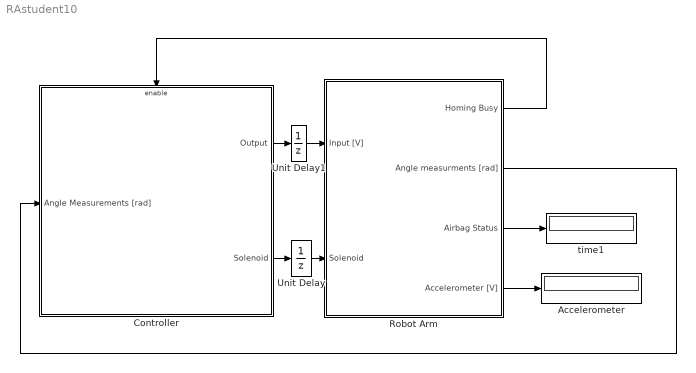
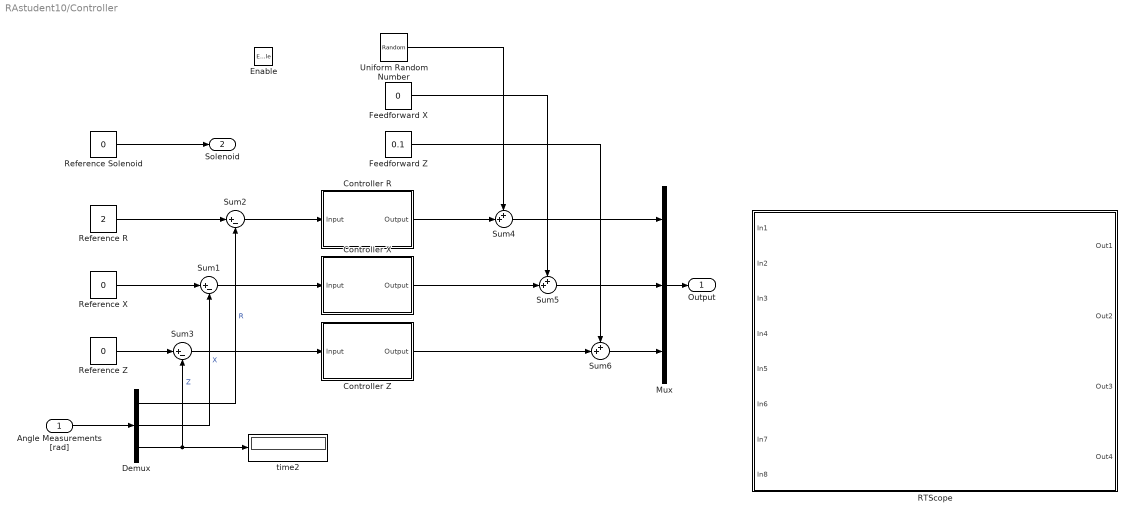
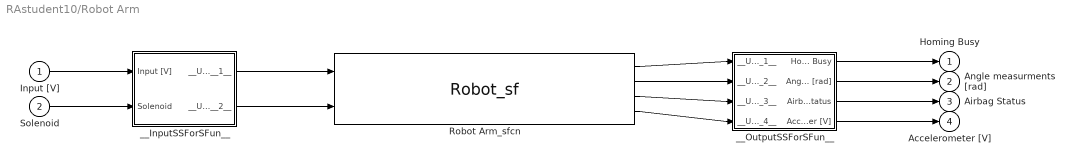
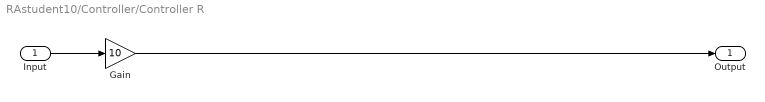
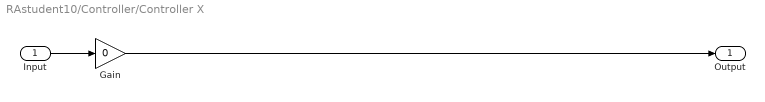
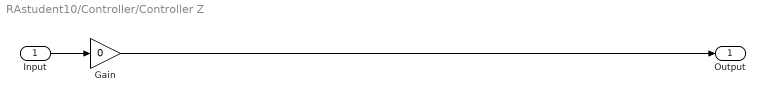
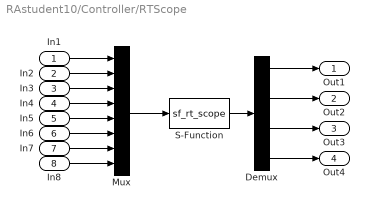
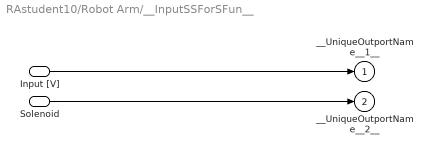
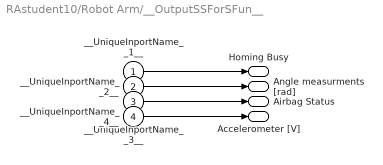
/*
 * RAstudent10.c
 *
 * Academic License - for use in teaching, academic research, and meeting
 * course requirements at degree granting institutions only.  Not for
 * government, commercial, or other organizational use.
 *
 * Code generation for model "RAstudent10".
 *
 * Model version              : 1.899
 * Simulink Coder version : 8.9 (R2015b) 13-Aug-2015
 * C source code generated on : Tue Apr  5 17:14:20 2016
 *
 * Target selection: ectarget.tlc
 * Note: GRT includes extra infrastructure and instrumentation for prototyping
 * Embedded hardware selection: 32-bit Generic
 * Code generation objectives: Unspecified
 * Validation result: Not run
 */

#include "RAstudent10.h"
#include "RAstudent10_private.h"
#include "RAstudent10_dt.h"
#undef S_FUNCTION_NAME
#if !defined(RTW_GENERATED_SFCN_TUNABLE_PRMS_Robot_sf)
#define RTW_GENERATED_SFCN_TUNABLE_PRMS_Robot_sf
#endif

#include "Robot_sf.h"

const real_T RAstudent10_RGND = 0.0;   /* real_T ground */

/* Block signals (auto storage) */
B_RAstudent10_T RAstudent10_B;

/* Block states (auto storage) */
DW_RAstudent10_T RAstudent10_DW;

/* Real-time model */
RT_MODEL_RAstudent10_T RAstudent10_M_;
RT_MODEL_RAstudent10_T *const RAstudent10_M = &RAstudent10_M_;
real_T rt_urand_Upu32_Yd_f_pw_snf(uint32_T *u)
{
  uint32_T lo;
  uint32_T hi;

  /* Uniform random number generator (random number between 0 and 1)

     #define IA      16807                      magic multiplier = 7^5
     #define IM      2147483647                 modulus = 2^31-1
     #define IQ      127773                     IM div IA
     #define IR      2836                       IM modulo IA
     #define S       4.656612875245797e-10      reciprocal of 2^31-1
     test = IA * (seed % IQ) - IR * (seed/IQ)
     seed = test < 0 ? (test + IM) : test
     return (seed*S)
   */
  lo = *u % 127773U * 16807U;
  hi = *u / 127773U * 2836U;
  if (lo < hi) {
    *u = 2147483647U - (hi - lo);
  } else {
    *u = lo - hi;
  }

  return (real_T)*u * 4.6566128752457969E-10;
}

/* Model output function */
void RAstudent10_output(void)
{
  /* Reset subsysRan breadcrumbs */
  srClearBC(RAstudent10_DW.Controller_SubsysRanBC);

  /* UnitDelay: '<Root>/Unit Delay1' */
  RAstudent10_B.UnitDelay1[0] = RAstudent10_DW.UnitDelay1_DSTATE[0];
  RAstudent10_B.UnitDelay1[1] = RAstudent10_DW.UnitDelay1_DSTATE[1];
  RAstudent10_B.UnitDelay1[2] = RAstudent10_DW.UnitDelay1_DSTATE[2];

  /* UnitDelay: '<Root>/Unit Delay' */
  RAstudent10_B.UnitDelay = RAstudent10_DW.UnitDelay_DSTATE;

  /* RTW Generated Level2 S-Function Block: '<S2>/Robot Arm_sfcn' (Robot_sf) */
  {
    SimStruct *rts = RAstudent10_M->childSfunctions[1];
    sfcnOutputs(rts, 0);
  }

  /* Outputs for Enabled SubSystem: '<Root>/Controller' incorporates:
   *  EnablePort: '<S1>/Enable'
   */
  if (RAstudent10_B.RobotArm_sfcn_o1 > 0.0) {
    if (!RAstudent10_DW.Controller_MODE) {
      RAstudent10_DW.Controller_MODE = true;
    }
  } else {
    if (RAstudent10_DW.Controller_MODE) {
      RAstudent10_DW.Controller_MODE = false;
    }
  }

  if (RAstudent10_DW.Controller_MODE) {
    /* UniformRandomNumber: '<S1>/Uniform Random Number' */
    RAstudent10_B.UniformRandomNumber =
      RAstudent10_DW.UniformRandomNumber_NextOutput;

    /* Sum: '<S1>/Sum4' incorporates:
     *  Constant: '<S1>/Reference R'
     *  Gain: '<S3>/Gain'
     *  Sum: '<S1>/Sum2'
     */
    RAstudent10_B.Sum4 = (RAstudent10_P.ReferenceR_Value -
                          RAstudent10_B.RobotArm_sfcn_o2[0]) *
      RAstudent10_P.Gain_Gain + RAstudent10_B.UniformRandomNumber;

    /* Sum: '<S1>/Sum5' incorporates:
     *  Constant: '<S1>/Feedforward X'
     *  Constant: '<S1>/Reference X'
     *  Gain: '<S4>/Gain'
     *  Sum: '<S1>/Sum1'
     */
    RAstudent10_B.Sum5 = (RAstudent10_P.ReferenceX_Value -
                          RAstudent10_B.RobotArm_sfcn_o2[1]) *
      RAstudent10_P.Gain_Gain_e + RAstudent10_P.FeedforwardX_Value;

    /* Sum: '<S1>/Sum6' incorporates:
     *  Constant: '<S1>/Feedforward Z'
     *  Constant: '<S1>/Reference Z'
     *  Gain: '<S5>/Gain'
     *  Sum: '<S1>/Sum3'
     */
    RAstudent10_B.Sum6 = (RAstudent10_P.ReferenceZ_Value -
                          RAstudent10_B.RobotArm_sfcn_o2[2]) *
      RAstudent10_P.Gain_Gain_l + RAstudent10_P.FeedforwardZ_Value;

    /* Constant: '<S1>/Reference Solenoid' */
    RAstudent10_B.ReferenceSolenoid = RAstudent10_P.ReferenceSolenoid_Value;

    /* Level2 S-Function Block: '<S6>/S-Function' (sf_rt_scope) */
    {
      SimStruct *rts = RAstudent10_M->childSfunctions[0];
      sfcnOutputs(rts, 0);
    }

    srUpdateBC(RAstudent10_DW.Controller_SubsysRanBC);
  }

  /* End of Outputs for SubSystem: '<Root>/Controller' */
}

/* Model update function */
void RAstudent10_update(void)
{
  /* Update for UnitDelay: '<Root>/Unit Delay1' */
  RAstudent10_DW.UnitDelay1_DSTATE[0] = RAstudent10_B.Sum4;
  RAstudent10_DW.UnitDelay1_DSTATE[1] = RAstudent10_B.Sum5;
  RAstudent10_DW.UnitDelay1_DSTATE[2] = RAstudent10_B.Sum6;

  /* Update for UnitDelay: '<Root>/Unit Delay' */
  RAstudent10_DW.UnitDelay_DSTATE = RAstudent10_B.ReferenceSolenoid;

  /* RTW Generated Level2 S-Function Block: '<S2>/Robot Arm_sfcn' (Robot_sf) */
  {
    SimStruct *rts = RAstudent10_M->childSfunctions[1];
    sfcnUpdate(rts, 0);
    if (ssGetErrorStatus(rts) != (NULL))
      return;
  }

  /* Update for Enabled SubSystem: '<Root>/Controller' incorporates:
   *  Update for EnablePort: '<S1>/Enable'
   */
  if (RAstudent10_DW.Controller_MODE) {
    /* Update for UniformRandomNumber: '<S1>/Uniform Random Number' */
    RAstudent10_DW.UniformRandomNumber_NextOutput =
      (RAstudent10_P.UniformRandomNumber_Maximum -
       RAstudent10_P.UniformRandomNumber_Minimum) * rt_urand_Upu32_Yd_f_pw_snf
      (&RAstudent10_DW.RandSeed) + RAstudent10_P.UniformRandomNumber_Minimum;
  }

  /* End of Update for SubSystem: '<Root>/Controller' */

  /* Update absolute time for base rate */
  /* The "clockTick0" counts the number of times the code of this task has
   * been executed. The absolute time is the multiplication of "clockTick0"
   * and "Timing.stepSize0". Size of "clockTick0" ensures timer will not
   * overflow during the application lifespan selected.
   * Timer of this task consists of two 32 bit unsigned integers.
   * The two integers represent the low bits Timing.clockTick0 and the high bits
   * Timing.clockTickH0. When the low bit overflows to 0, the high bits increment.
   */
  if (!(++RAstudent10_M->Timing.clockTick0)) {
    ++RAstudent10_M->Timing.clockTickH0;
  }

  RAstudent10_M->Timing.t[0] = RAstudent10_M->Timing.clockTick0 *
    RAstudent10_M->Timing.stepSize0 + RAstudent10_M->Timing.clockTickH0 *
    RAstudent10_M->Timing.stepSize0 * 4294967296.0;

  {
    /* Update absolute timer for sample time: [0.000244140625s, 0.0s] */
    /* The "clockTick1" counts the number of times the code of this task has
     * been executed. The absolute time is the multiplication of "clockTick1"
     * and "Timing.stepSize1". Size of "clockTick1" ensures timer will not
     * overflow during the application lifespan selected.
     * Timer of this task consists of two 32 bit unsigned integers.
     * The two integers represent the low bits Timing.clockTick1 and the high bits
     * Timing.clockTickH1. When the low bit overflows to 0, the high bits increment.
     */
    if (!(++RAstudent10_M->Timing.clockTick1)) {
      ++RAstudent10_M->Timing.clockTickH1;
    }

    RAstudent10_M->Timing.t[1] = RAstudent10_M->Timing.clockTick1 *
      RAstudent10_M->Timing.stepSize1 + RAstudent10_M->Timing.clockTickH1 *
      RAstudent10_M->Timing.stepSize1 * 4294967296.0;
  }
}
